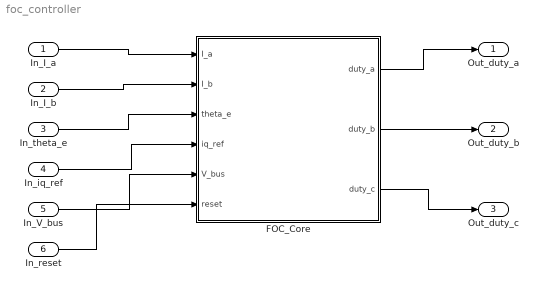
== matlab function foc_controller/FOC_Core ==
function [duty_a, duty_b, duty_c] = foc_core(I_a, I_b, theta_e, iq_ref, V_bus, Ts_ctrl, duty_min, duty_max, reset, Kp_d, Ki_d, Kp_q, Ki_q)
%#codegen
% FOC 电流环控制器 — 对齐固件 foc_interface.h
% Parameters (从 foc_params.m): Kp_d, Ki_d, Kp_q, Ki_q, Ts_ctrl, duty_min, duty_max

persistent int_d int_q
if isempty(int_d) || reset
    int_d = single(0);
    int_q = single(0);
end

id_ref = single(0);  % SPM: id=0 内部固定

% 1. IW 软件计算
I_c = -(I_a + I_b);

% 2. Clarke (等幅值 2/3)
ialpha = (2*I_a - I_b - I_c) / 3;
ibeta  = (sqrt(single(3)) * (I_b - I_c)) / 3;

% 3. Park
cos_e = cos(theta_e);
sin_e = sin(theta_e);
id_fb =  ialpha * cos_e + ibeta * sin_e;
iq_fb = -ialpha * sin_e + ibeta * cos_e;

% 4. PI (抗积分饱和)
V_lim = V_bus / sqrt(single(3));
err_d = id_ref - id_fb;
err_q = iq_ref - iq_fb;

vd_star = Kp_d * err_d + int_d;
vq_star = Kp_q * err_q + int_q;

v_mag = sqrt(vd_star*vd_star + vq_star*vq_star);
if v_mag > V_lim
    vd_star = vd_star * V_lim / v_mag;
    vq_star = vq_star * V_lim / v_mag;
else
    int_d = int_d + Ki_d * Ts_ctrl * err_d;
    int_q = int_q + Ki_q * Ts_ctrl * err_q;
end

% 5. 逆 Park
valpha = vd_star * cos_e - vq_star * sin_e;
vbeta  = vd_star * sin_e + vq_star * cos_e;

% 6. SVPWM (中性点注入)
va = valpha;
vb = -single(0.5)*valpha + (sqrt(single(3))/2)*vbeta;
vc = -single(0.5)*valpha - (sqrt(single(3))/2)*vbeta;
v_off = -(max(max(va,vb),vc) + min(min(va,vb),vc)) / 2;
va = va + v_off; vb = vb + v_off; vc = vc + v_off;

duty_a = max(duty_min, min(duty_max, va/V_bus + single(0.5)));
duty_b = max(duty_min, min(duty_max, vb/V_bus + single(0.5)));
duty_c = max(duty_min, min(duty_max, vc/V_bus + single(0.5)));

/*
 * File: foc_controller.c
 *
 * Code generated for Simulink model 'foc_controller'.
 *
 * Model version                  : 1.13
 * Simulink Coder version         : 24.2 (R2024b) 21-Jun-2024
 * C/C++ source code generated on : Tue Apr 21 17:03:24 2026
 *
 * Target selection: ert.tlc
 * Embedded hardware selection: ARM Compatible->ARM Cortex-M
 * Code generation objectives: Unspecified
 * Validation result: Not run
 */

#include "foc_controller.h"
#include <math.h>
#include "rtwtypes.h"

/* Block states (default storage) */
DW_foc_controller_T foc_controller_DW;

/* External inputs (root inport signals with default storage) */
ExtU_foc_controller_T foc_controller_U;

/* External outputs (root outports fed by signals with default storage) */
ExtY_foc_controller_T foc_controller_Y;

/* Real-time model */
static RT_MODEL_foc_controller_T foc_controller_M_;
RT_MODEL_foc_controller_T *const foc_controller_M = &foc_controller_M_;

/* Model step function */
void foc_controller_step(void)
{
  real32_T I_c;
  real32_T V_lim;
  real32_T err_d;
  real32_T err_q;
  real32_T ialpha;
  real32_T ibeta;
  real32_T sin_e;
  real32_T v_mag;

  /* MATLAB Function: '<Root>/FOC_Core' incorporates:
   *  Inport: '<Root>/In_I_a'
   *  Inport: '<Root>/In_I_b'
   *  Inport: '<Root>/In_V_bus'
   *  Inport: '<Root>/In_iq_ref'
   *  Inport: '<Root>/In_reset'
   *  Inport: '<Root>/In_theta_e'
   */
  if ((!foc_controller_DW.int_d_not_empty) || foc_controller_U.In_reset) {
    foc_controller_DW.int_d = 0.0F;
    foc_controller_DW.int_d_not_empty = true;
    foc_controller_DW.int_q = 0.0F;
  }

  I_c = -(foc_controller_U.In_I_a + foc_controller_U.In_I_b);
  ialpha = ((2.0F * foc_controller_U.In_I_a - foc_controller_U.In_I_b) - I_c) /
    3.0F;
  ibeta = (foc_controller_U.In_I_b - I_c) * 1.73205078F / 3.0F;
  I_c = cosf(foc_controller_U.In_theta_e);
  sin_e = sinf(foc_controller_U.In_theta_e);
  V_lim = foc_controller_U.In_V_bus / 1.73205078F;
  err_d = 0.0F - (ialpha * I_c + ibeta * sin_e);
  err_q = foc_controller_U.In_iq_ref - (-ialpha * sin_e + ibeta * I_c);
  ialpha = 0.628318489F * err_d + foc_controller_DW.int_d;
  ibeta = 0.628318489F * err_q + foc_controller_DW.int_q;
  v_mag = sqrtf(ialpha * ialpha + ibeta * ibeta);
  if (v_mag > V_lim) {
    ialpha = ialpha * V_lim / v_mag;
    ibeta = ibeta * V_lim / v_mag;
  } else {
    foc_controller_DW.int_d += 0.424115032F * err_d;
    foc_controller_DW.int_q += 0.424115032F * err_q;
  }

  V_lim = ialpha * I_c - ibeta * sin_e;
  sin_e = ialpha * sin_e + ibeta * I_c;
  I_c = -0.5F * V_lim + 0.866025388F * sin_e;
  sin_e = -0.5F * V_lim - 0.866025388F * sin_e;
  err_d = -(fmaxf(fmaxf(V_lim, I_c), sin_e) + fminf(fminf(V_lim, I_c), sin_e)) /
    2.0F;

  /* Outport: '<Root>/Out_duty_a' incorporates:
   *  Inport: '<Root>/In_V_bus'
   *  MATLAB Function: '<Root>/FOC_Core'
   */
  foc_controller_Y.Out_duty_a = fmaxf(0.02F, fminf(0.98F, (V_lim + err_d) /
    foc_controller_U.In_V_bus + 0.5F));

  /* Outport: '<Root>/Out_duty_b' incorporates:
   *  Inport: '<Root>/In_V_bus'
   *  MATLAB Function: '<Root>/FOC_Core'
   */
  foc_controller_Y.Out_duty_b = fmaxf(0.02F, fminf(0.98F, (I_c + err_d) /
    foc_controller_U.In_V_bus + 0.5F));

  /* Outport: '<Root>/Out_duty_c' incorporates:
   *  Inport: '<Root>/In_V_bus'
   *  MATLAB Function: '<Root>/FOC_Core'
   */
  foc_controller_Y.Out_duty_c = fmaxf(0.02F, fminf(0.98F, (sin_e + err_d) /
    foc_controller_U.In_V_bus + 0.5F));
}
